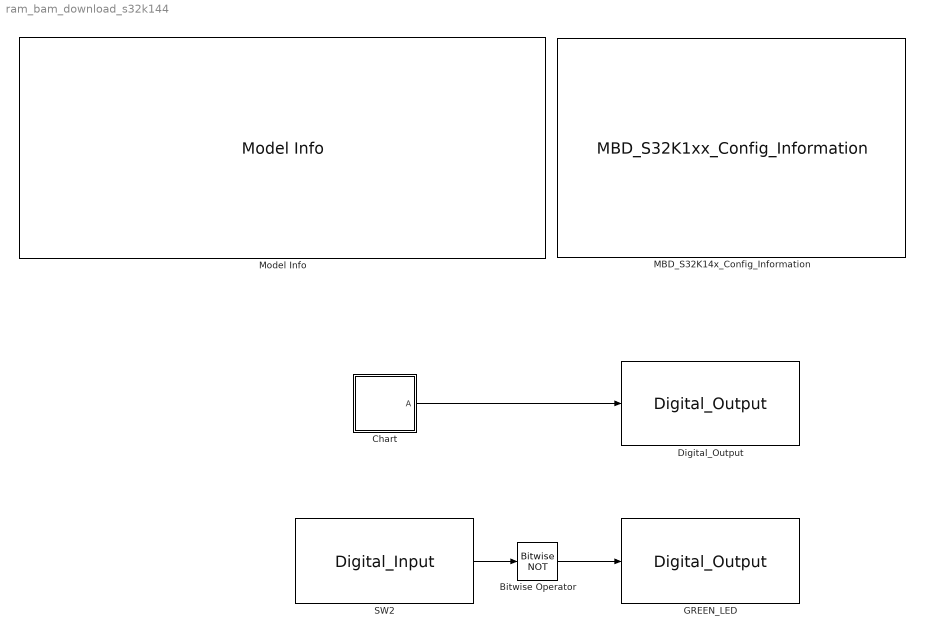
== stateflow chart Chart ==
  state A
  state A1
  (default) -> A
  A -> A1
  A1 -> A
  data: A output boolean [0..1]

/*
 * Academic License - for use in teaching, academic research, and meeting
 * course requirements at degree granting institutions only.  Not for
 * government, commercial, or other organizational use.
 *
 * File: ram_bam_download_s32k144.c
 *
 * Code generated for Simulink model 'ram_bam_download_s32k144'.
 *
 * Model version                   : 1.93
 * Simulink Coder version          : 9.0 (R2018b) 24-May-2018
 * MBDT for S32K1xx Series Version : 4.1.0 (R2017b-R2019a) 22-Jul-2019
 * C/C++ source code generated on  : Fri Apr 10 12:28:21 2020
 *
 * Target selection: mbd_s32k.tlc
 * Embedded hardware selection: ARM Compatible->ARM Cortex
 * Code generation objectives: Unspecified
 * Validation result: Not run
 */

#include "ram_bam_download_s32k144.h"
#include "ram_bam_download_s32k144_private.h"

/* Named constants for Chart: '<Root>/Chart' */
#define ram_bam_down_IN_NO_ACTIVE_CHILD ((uint8_T)0U)
#define ram_bam_download_s32k144_IN_A  ((uint8_T)1U)
#define ram_bam_download_s32k144_IN_A1 ((uint8_T)2U)

/* Block signals (default storage) */
B_ram_bam_download_s32k144_T ram_bam_download_s32k144_B;

/* Block states (default storage) */
DW_ram_bam_download_s32k144_T ram_bam_download_s32k144_DW;

/* Real-time model */
RT_MODEL_ram_bam_download_s32_T ram_bam_download_s32k144_M_;
RT_MODEL_ram_bam_download_s32_T *const ram_bam_download_s32k144_M =
  &ram_bam_download_s32k144_M_;

/* Model step function */
void ram_bam_download_s32k144_step(void)
{
  /* S-Function (gpio_s32k_input): '<Root>/SW2' */

  /* GPIPORTC12 signal update */
  ram_bam_download_s32k144_B.SW2 = (PINS_DRV_ReadPins(PTC) >> 12) & 0x01;

  /* S-Function (sfix_bitop): '<Root>/Bitwise Operator' */
  ram_bam_download_s32k144_B.BitwiseOperator = !ram_bam_download_s32k144_B.SW2;

  /* S-Function (gpio_s32k_output): '<Root>/GREEN_LED' */

  /* GPOPORTD16 Data Signal Update */
  if (ram_bam_download_s32k144_B.BitwiseOperator) {
    PINS_DRV_SetPins(PTD, 1UL<<16);
  } else {
    PINS_DRV_ClearPins(PTD, 1UL<<16);
  }

  /* Chart: '<Root>/Chart' */
  /* Gateway: Chart */
  /* During: Chart */
  if (ram_bam_download_s32k144_DW.is_active_c3_ram_bam_download_s == 0U) {
    /* Entry: Chart */
    ram_bam_download_s32k144_DW.is_active_c3_ram_bam_download_s = 1U;

    /* Entry Internal: Chart */
    /* Transition: '<S1>:1' */
    ram_bam_download_s32k144_DW.is_c3_ram_bam_download_s32k144 =
      ram_bam_download_s32k144_IN_A;
    ram_bam_download_s32k144_B.A = true;
  } else if (ram_bam_download_s32k144_DW.is_c3_ram_bam_download_s32k144 ==
             ram_bam_download_s32k144_IN_A) {
    /* During 'A': '<S1>:3' */
    /* Transition: '<S1>:7' */
    ram_bam_download_s32k144_B.A = false;
    ram_bam_download_s32k144_DW.is_c3_ram_bam_download_s32k144 =
      ram_bam_download_s32k144_IN_A1;
  } else {
    /* During 'A1': '<S1>:6' */
    /* Transition: '<S1>:8' */
    ram_bam_download_s32k144_DW.is_c3_ram_bam_download_s32k144 =
      ram_bam_download_s32k144_IN_A;
    ram_bam_download_s32k144_B.A = true;
  }

  /* End of Chart: '<Root>/Chart' */

  /* S-Function (gpio_s32k_output): '<Root>/Digital_Output' */

  /* GPOPORTD0 Data Signal Update */
  if (ram_bam_download_s32k144_B.A) {
    PINS_DRV_SetPins(PTD, 1UL<<0);
  } else {
    PINS_DRV_ClearPins(PTD, 1UL<<0);
  }
}
